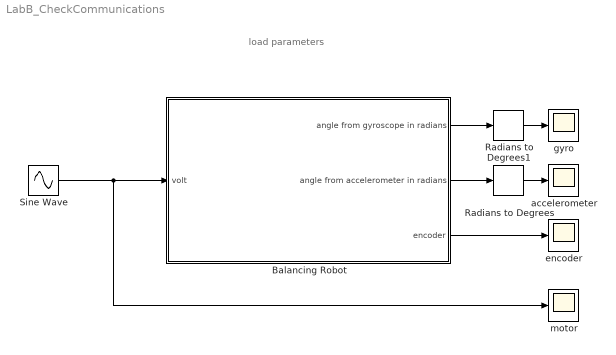
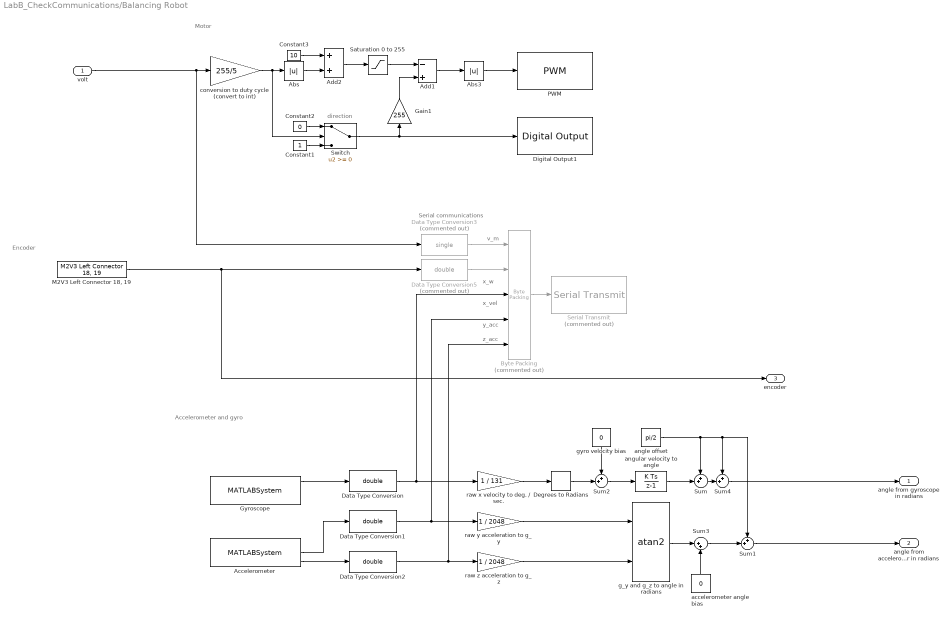
/*
 * Academic License - for use in teaching, academic research, and meeting
 * course requirements at degree granting institutions only.  Not for
 * government, commercial, or other organizational use.
 *
 * File: LabB_CheckCommunications.c
 *
 * Code generated for Simulink model 'LabB_CheckCommunications'.
 *
 * Model version                  : 18.0
 * Simulink Coder version         : 25.2 (R2025b) 28-Jul-2025
 * C/C++ source code generated on : Mon Nov 10 12:57:30 2025
 *
 * Target selection: ert.tlc
 * Embedded hardware selection: Atmel->AVR
 * Code generation objectives: Unspecified
 * Validation result: Not run
 */

#include "LabB_CheckCommunications.h"
#include "LabB_CheckCommunications_private.h"
#include <math.h>
#include "rt_nonfinite.h"
#include "rtwtypes.h"
#include <string.h>
#include "rt_defines.h"

/* Block signals (default storage) */
BlockIO_LabB_CheckCommunication LabB_CheckCommunications_B;

/* Block states (default storage) */
D_Work_LabB_CheckCommunications LabB_CheckCommunications_DWork;

/* Real-time model */
static RT_MODEL_LabB_CheckCommunicatio LabB_CheckCommunications_M_;
RT_MODEL_LabB_CheckCommunicatio *const LabB_CheckCommunications_M =
  &LabB_CheckCommunications_M_;
real_T rt_atan2d_snf(real_T u0, real_T u1)
{
  real_T y;
  int16_T tmp;
  int16_T tmp_0;
  if (rtIsNaN(u0) || rtIsNaN(u1)) {
    y = (rtNaN);
  } else if (rtIsInf(u0) && rtIsInf(u1)) {
    if (u0 > 0.0) {
      tmp = 1;
    } else {
      tmp = -1;
    }

    if (u1 > 0.0) {
      tmp_0 = 1;
    } else {
      tmp_0 = -1;
    }

    y = atan2(tmp, tmp_0);
  } else if (u1 == 0.0) {
    if (u0 > 0.0) {
      y = RT_PI / 2.0;
    } else if (u0 < 0.0) {
      y = -(RT_PI / 2.0);
    } else {
      y = 0.0;
    }
  } else {
    y = atan2(u0, u1);
  }

  return y;
}

real_T rt_roundd_snf(real_T u)
{
  real_T y;
  if (fabs(u) < 4.503599627370496E+15) {
    if (u >= 0.5) {
      y = floor(u + 0.5);
    } else if (u > -0.5) {
      y = u * 0.0;
    } else {
      y = ceil(u - 0.5);
    }
  } else {
    y = u;
  }

  return y;
}

/* Model step function */
void LabB_CheckCommunications_step(void)
{
  real_T rtb_Switch;
  real_T u0;
  int16_T out[3];
  int16_T rtb_Abs;
  uint8_T tmp;

  /* MATLABSystem: '<S1>/M2V3 Left Connector 18, 19' */
  /*         %% Define output properties */
  /* 'Encoder_arduino:136' num = 0; */
  /* 'Encoder_arduino:140' num = 1; */
  /* 'Encoder_arduino:121' y = int32(0); */
  /* 'Encoder_arduino:122' if coder.target('Rtw') */
  /*  Call: int enc_output(int enc) */
  /* 'Encoder_arduino:124' y = coder.ceval('enc_output', obj.Encoder); */
  LabB_CheckCommunications_B.M2V3LeftConnector1819 = enc_output(1.0);

  /* Gain: '<S3>/Gain' incorporates:
   *  Constant: '<S1>/angle offset'
   *  DiscreteIntegrator: '<S1>/angular velocity to angle'
   *  Sum: '<S1>/Sum'
   *  Sum: '<S1>/Sum4'
   */
  LabB_CheckCommunications_B.Gain =
    ((LabB_CheckCommunications_P.angleoffset_Value +
      LabB_CheckCommunications_DWork.angularvelocitytoangle_DSTATE) +
     LabB_CheckCommunications_P.angleoffset_Value) *
    LabB_CheckCommunications_P.Gain_Gain;

  /* MATLABSystem: '<S1>/Accelerometer' */
  /*  initialize output to a single (float) with the value zero */
  /* 'soMPU6050Accel:40' out = int16(zeros(3,1)); */
  /* 'soMPU6050Accel:41' if (coder.target('Rtw')) */
  /*  done only for code gen */
  /* 'soMPU6050Accel:42' coder.cinclude('MPU6050wrapper.h'); */
  /*  get the current value of the sensor */
  /* 'soMPU6050Accel:44' coder.ceval('MPU6050Accel_Read', coder.wref(out)); */
  MPU6050Accel_Read(&out[0]);

  /* Gain: '<S2>/Gain' incorporates:
   *  Constant: '<S1>/accelerometer angle bias'
   *  Constant: '<S1>/angle offset'
   *  DataTypeConversion: '<S1>/Data Type Conversion1'
   *  DataTypeConversion: '<S1>/Data Type Conversion2'
   *  Gain: '<S1>/raw y acceleration to g_y'
   *  Gain: '<S1>/raw z acceleration to g_z'
   *  MATLABSystem: '<S1>/Accelerometer'
   *  Sum: '<S1>/Sum1'
   *  Sum: '<S1>/Sum3'
   *  Trigonometry: '<S1>/g_y and g_z to angle in radians'
   * */
  /*  pull the data appart */
  /* 'soMPU6050Accel:49' xaccel = out(1); */
  /* 'soMPU6050Accel:50' yaccel = out(2); */
  /* 'soMPU6050Accel:51' zaccel = out(3); */
  LabB_CheckCommunications_B.Gain_j = ((rt_atan2d_snf
    (LabB_CheckCommunications_P.rawyaccelerationtog_y_Gain * (real_T)out[1],
     LabB_CheckCommunications_P.rawzaccelerationtog_z_Gain * (real_T)out[2]) +
    LabB_CheckCommunications_P.accelerometeranglebias_Value) +
    LabB_CheckCommunications_P.angleoffset_Value) *
    LabB_CheckCommunications_P.Gain_Gain_g;

  /* Sin: '<Root>/Sine Wave' */
  if (LabB_CheckCommunications_DWork.systemEnable != 0L) {
    rtb_Switch = LabB_CheckCommunications_P.SineWave_Freq *
      ((LabB_CheckCommunications_M->Timing.clockTick0) * 0.01);
    LabB_CheckCommunications_DWork.lastSin = sin(rtb_Switch);
    LabB_CheckCommunications_DWork.lastCos = cos(rtb_Switch);
    LabB_CheckCommunications_DWork.systemEnable = 0L;
  }

  /* Sin: '<Root>/Sine Wave' */
  LabB_CheckCommunications_B.SineWave = ((LabB_CheckCommunications_DWork.lastSin
    * LabB_CheckCommunications_P.SineWave_PCos +
    LabB_CheckCommunications_DWork.lastCos *
    LabB_CheckCommunications_P.SineWave_PSin) *
    LabB_CheckCommunications_P.SineWave_HCos +
    (LabB_CheckCommunications_DWork.lastCos *
     LabB_CheckCommunications_P.SineWave_PCos -
     LabB_CheckCommunications_DWork.lastSin *
     LabB_CheckCommunications_P.SineWave_PSin) *
    LabB_CheckCommunications_P.SineWave_Hsin) *
    LabB_CheckCommunications_P.SineWave_Amp +
    LabB_CheckCommunications_P.SineWave_Bias;

  /* MATLABSystem: '<S1>/Gyroscope' */
  /*  initialize output to a single (float) with the value zero */
  /* 'soMPU6050Gyro:59' out = int16(zeros(3,1)); */
  /* 'soMPU6050Gyro:60' if coder.target('Rtw') */
  /*  done only for code gen */
  /* 'soMPU6050Gyro:61' coder.cinclude('MPU6050wrapper.h'); */
  /*  get the current value of the sensor */
  /* 'soMPU6050Gyro:63' coder.ceval('MPU6050Gyro_Read', coder.wref(out)); */
  MPU6050Gyro_Read(&out[0]);

  /* Gain: '<S1>/conversion to duty cycle (convert to int)' */
  /*  pull the data appart */
  /* 'soMPU6050Gyro:68' xvel = out(1); */
  /* 'soMPU6050Gyro:69' yvel = out(2); */
  /* 'soMPU6050Gyro:70' zvel = out(3); */
  u0 = floor(LabB_CheckCommunications_P.conversiontodutycycleconverttoi *
             LabB_CheckCommunications_B.SineWave);
  if (rtIsNaN(u0) || rtIsInf(u0)) {
    u0 = 0.0;
  } else {
    u0 = fmod(u0, 65536.0);
  }

  rtb_Abs = u0 < 0.0 ? -(int16_T)(uint16_T)-u0 : (int16_T)(uint16_T)u0;

  /* End of Gain: '<S1>/conversion to duty cycle (convert to int)' */

  /* Switch: '<S1>/Switch' incorporates:
   *  Constant: '<S1>/Constant1'
   *  Constant: '<S1>/Constant2'
   */
  if (rtb_Abs >= LabB_CheckCommunications_P.Switch_Threshold) {
    rtb_Switch = LabB_CheckCommunications_P.Constant2_Value;
  } else {
    rtb_Switch = LabB_CheckCommunications_P.Constant1_Value;
  }

  /* End of Switch: '<S1>/Switch' */

  /* MATLABSystem: '<S1>/Digital Output1' */
  u0 = rt_roundd_snf(rtb_Switch);
  if (u0 < 256.0) {
    if (u0 >= 0.0) {
      tmp = (uint8_T)u0;
    } else {
      tmp = 0U;
    }
  } else {
    tmp = MAX_uint8_T;
  }

  writeDigitalPin(6, tmp);

  /* End of MATLABSystem: '<S1>/Digital Output1' */

  /* MATLABSystem: '<S1>/PWM' */
  LabB_CheckCommunications_DWork.obj_i.PWMDriverObj.MW_PWM_HANDLE =
    MW_PWM_GetHandle(8UL);

  /* Abs: '<S1>/Abs' */
  if (rtb_Abs < 0) {
    rtb_Abs = -rtb_Abs;
  }

  /* Sum: '<S1>/Add2' incorporates:
   *  Abs: '<S1>/Abs'
   *  Constant: '<S1>/Constant3'
   */
  u0 = LabB_CheckCommunications_P.Constant3_Value + (real_T)rtb_Abs;

  /* Saturate: '<S1>/Saturation 0 to 255' */
  if (u0 > LabB_CheckCommunications_P.Saturation0to255_UpperSat) {
    u0 = LabB_CheckCommunications_P.Saturation0to255_UpperSat;
  } else if (u0 < LabB_CheckCommunications_P.Saturation0to255_LowerSat) {
    u0 = LabB_CheckCommunications_P.Saturation0to255_LowerSat;
  }

  /* Abs: '<S1>/Abs3' incorporates:
   *  Gain: '<S1>/Gain1'
   *  Saturate: '<S1>/Saturation 0 to 255'
   *  Sum: '<S1>/Add1'
   */
  u0 = fabs(LabB_CheckCommunications_P.Gain1_Gain_b * rtb_Switch - u0);

  /* Start for MATLABSystem: '<S1>/PWM' */
  if (!(u0 <= 255.0)) {
    u0 = 255.0;
  }

  /* MATLABSystem: '<S1>/PWM' */
  MW_PWM_SetDutyCycle
    (LabB_CheckCommunications_DWork.obj_i.PWMDriverObj.MW_PWM_HANDLE, u0);

  /* Update for DiscreteIntegrator: '<S1>/angular velocity to angle' incorporates:
   *  Constant: '<S1>/gyro velocity bias'
   *  DataTypeConversion: '<S1>/Data Type Conversion'
   *  Gain: '<S1>/raw x velocity to deg. // sec.'
   *  Gain: '<S4>/Gain1'
   *  MATLABSystem: '<S1>/Gyroscope'
   *  Sum: '<S1>/Sum2'
   * */
  LabB_CheckCommunications_DWork.angularvelocitytoangle_DSTATE +=
    (LabB_CheckCommunications_P.rawxvelocitytodegsec_Gain * (real_T)out[0] *
     LabB_CheckCommunications_P.Gain1_Gain +
     LabB_CheckCommunications_P.gyrovelocitybias_Value) *
    LabB_CheckCommunications_P.angularvelocitytoangle_gainval;

  /* Update for Sin: '<Root>/Sine Wave' */
  rtb_Switch = LabB_CheckCommunications_DWork.lastSin;
  LabB_CheckCommunications_DWork.lastSin =
    LabB_CheckCommunications_DWork.lastSin *
    LabB_CheckCommunications_P.SineWave_HCos +
    LabB_CheckCommunications_DWork.lastCos *
    LabB_CheckCommunications_P.SineWave_Hsin;
  LabB_CheckCommunications_DWork.lastCos =
    LabB_CheckCommunications_DWork.lastCos *
    LabB_CheckCommunications_P.SineWave_HCos - rtb_Switch *
    LabB_CheckCommunications_P.SineWave_Hsin;

  /* Update absolute time for base rate */
  /* The "clockTick0" counts the number of times the code of this task has
   * been executed. The resolution of this integer timer is 0.01, which is the step size
   * of the task. Size of "clockTick0" ensures timer will not overflow during the
   * application lifespan selected.
   */
  LabB_CheckCommunications_M->Timing.clockTick0++;
}
